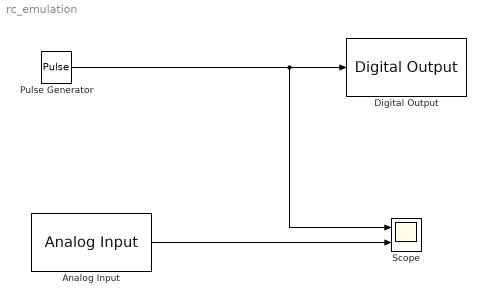
/*
 * Academic License - for use in teaching, academic research, and meeting
 * course requirements at degree granting institutions only.  Not for
 * government, commercial, or other organizational use.
 *
 * File: rc_emulation.c
 *
 * Code generated for Simulink model 'rc_emulation'.
 *
 * Model version                  : 1.0
 * Simulink Coder version         : 24.2 (R2024b) 21-Jun-2024
 * C/C++ source code generated on : Mon Mar 17 18:17:59 2025
 *
 * Target selection: ert.tlc
 * Embedded hardware selection: Atmel->AVR
 * Code generation objectives: Unspecified
 * Validation result: Not run
 */

#include "rc_emulation.h"
#include "rc_emulation_private.h"
#include "rtwtypes.h"
#include <math.h>

/* Block signals (default storage) */
B_rc_emulation_T rc_emulation_B;

/* Block states (default storage) */
DW_rc_emulation_T rc_emulation_DW;

/* Real-time model */
static RT_MODEL_rc_emulation_T rc_emulation_M_;
RT_MODEL_rc_emulation_T *const rc_emulation_M = &rc_emulation_M_;
real_T rt_roundd_snf(real_T u)
{
  real_T y;
  if (fabs(u) < 4.503599627370496E+15) {
    if (u >= 0.5) {
      y = floor(u + 0.5);
    } else if (u > -0.5) {
      y = u * 0.0;
    } else {
      y = ceil(u - 0.5);
    }
  } else {
    y = u;
  }

  return y;
}

/* Model step function */
void rc_emulation_step(void)
{
  real_T tmp;
  uint8_T tmp_0;

  /* DiscretePulseGenerator: '<Root>/Pulse Generator' */
  rc_emulation_B.PulseGenerator = (rc_emulation_DW.clockTickCounter <
    rc_emulation_P.PulseGenerator_Duty) && (rc_emulation_DW.clockTickCounter >=
    0L) ? rc_emulation_P.PulseGenerator_Amp : 0.0;

  /* DiscretePulseGenerator: '<Root>/Pulse Generator' */
  if (rc_emulation_DW.clockTickCounter >= rc_emulation_P.PulseGenerator_Period -
      1.0) {
    rc_emulation_DW.clockTickCounter = 0L;
  } else {
    rc_emulation_DW.clockTickCounter++;
  }

  /* MATLABSystem: '<Root>/Digital Output' */
  tmp = rt_roundd_snf(rc_emulation_B.PulseGenerator);
  if (tmp < 256.0) {
    if (tmp >= 0.0) {
      tmp_0 = (uint8_T)tmp;
    } else {
      tmp_0 = 0U;
    }
  } else {
    tmp_0 = MAX_uint8_T;
  }

  writeDigitalPin(9, tmp_0);

  /* End of MATLABSystem: '<Root>/Digital Output' */

  /* MATLABSystem: '<Root>/Analog Input' */
  rc_emulation_DW.obj.AnalogInDriverObj.MW_ANALOGIN_HANDLE =
    MW_AnalogIn_GetHandle(58UL);

  /* MATLABSystem: '<Root>/Analog Input' */
  MW_AnalogInSingle_ReadResult
    (rc_emulation_DW.obj.AnalogInDriverObj.MW_ANALOGIN_HANDLE,
     &rc_emulation_B.AnalogInput, MW_ANALOGIN_UINT16);

  /* Update absolute time for base rate */
  /* The "clockTick0" counts the number of times the code of this task has
   * been executed. The absolute time is the multiplication of "clockTick0"
   * and "Timing.stepSize0". Size of "clockTick0" ensures timer will not
   * overflow during the application lifespan selected.
   */
  rc_emulation_M->Timing.taskTime0 =
    ((time_T)(++rc_emulation_M->Timing.clockTick0)) *
    rc_emulation_M->Timing.stepSize0;
}
